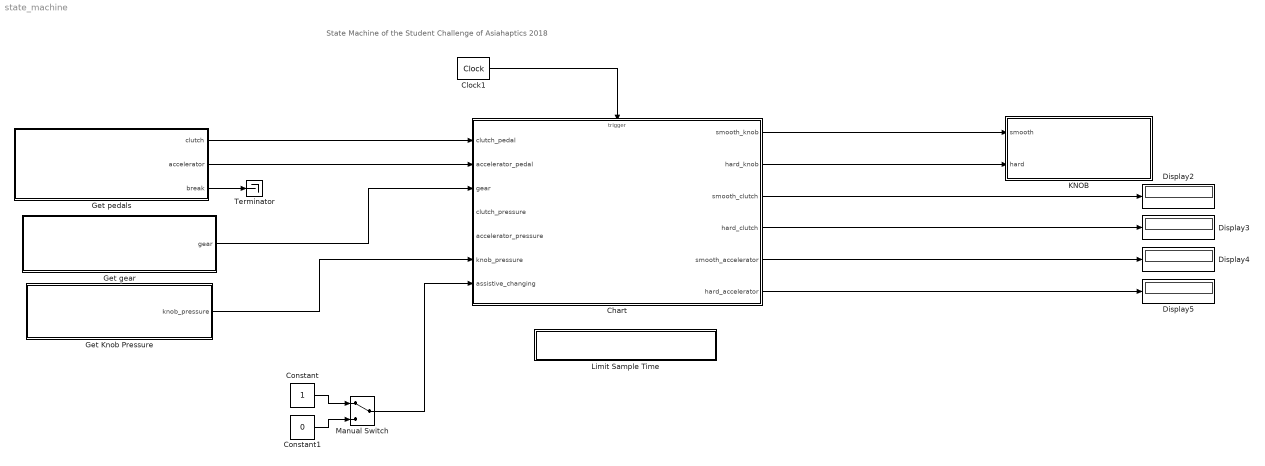
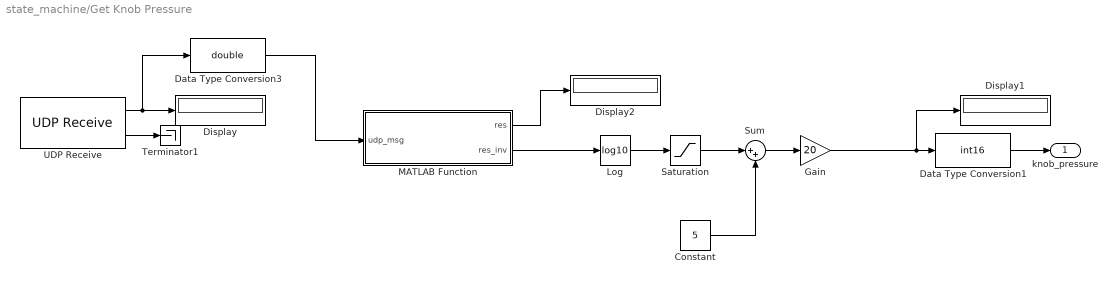
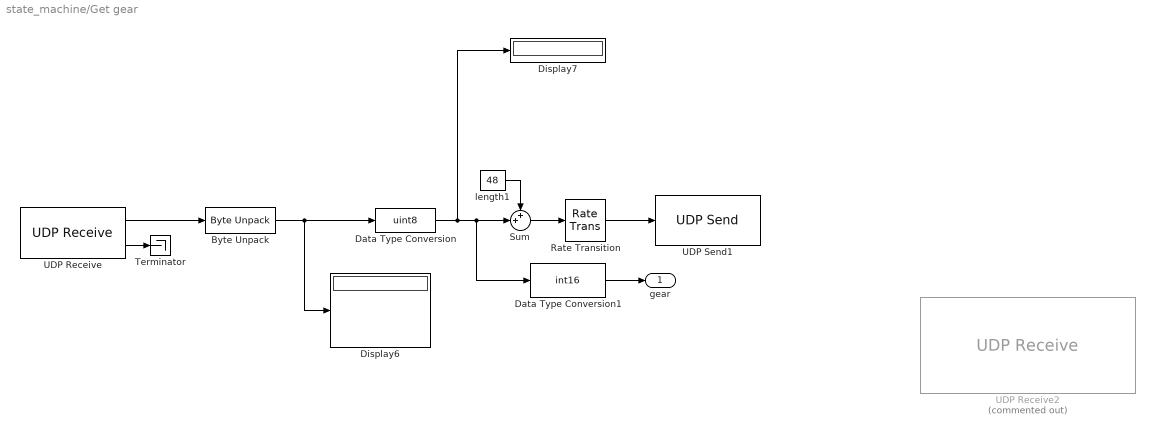
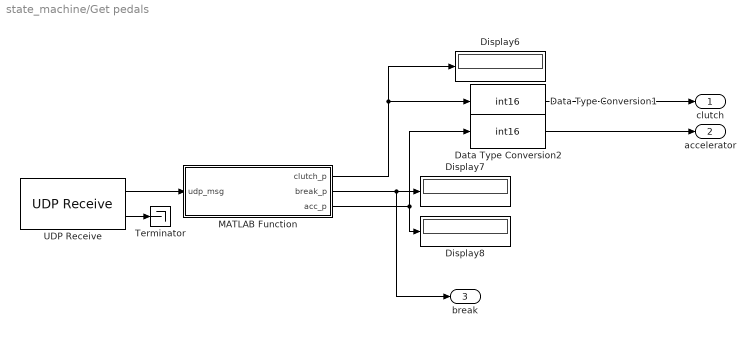
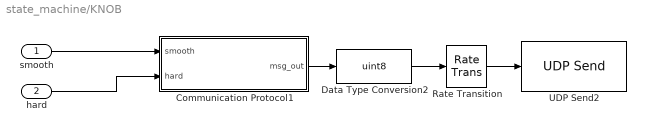
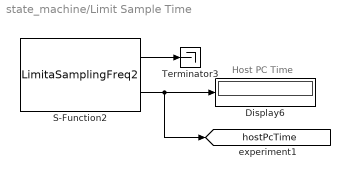
== matlab function state_machine/Get Knob Pressure/MATLAB Function ==
function [res,res_inv]  = get_FSR_resistance(udp_msg)
%% The function returns the value of the FSR resistance
% starting from the ADC value (the signal passes through a voltage divider
r_in = 1000, % Ohm
V_in = 4096; % ADC ticks
V_out = udp_msg; % ADC ticks

res = r_in * (V_in - V_out) / V_out;
res_inv = 1/res;
end

== matlab function state_machine/Get pedals/MATLAB Function ==
function [clutch_p, break_p, acc_p] = get_pedals(udp_msg)
%% The function provides the values of pression of the pedals
%  as an integer number between 0 and 100 (0 released, 100 completely
%  pressed)

clutch_p = 100 - (get_number(udp_msg(2))*100 + get_number(udp_msg(4))*10 + get_number(udp_msg(5)));
break_p = 100 - (get_number(udp_msg(7))*100 + get_number(udp_msg(9))*10 + get_number(udp_msg(10)));
acc_p = 100 - (get_number(udp_msg(12))*100 + get_number(udp_msg(14))*10 + get_number(udp_msg(15)));

end

function [number] = get_number(char)
    number = char - 48;
end

== stateflow chart state_machine/Chart ==
  state CLUTCH_and_KNOB [parallel]
    state Gear_changing_process
      % This Part is assistive driving and can be deactivated if necessary
      state START
        % The system waits for the knob_action
        entry:smooth_knob
        exit:smooth_knob
      state Wait_for_gear_change
        state KNOB_1
          % The action of change starts
          % Neutral Gear
        state KNOB_3
          % The driver waits a lot to change
          entry:smooth_knob
          exit:smooth_knob
        KNOB_1 -> KNOB_3 : after(TIME_THRESHOLD,tick_in)
      state KNOB_2
        % The driver changes the gear
        entry:smooth_clutch
        exit:smooth_clutch
      (default) -> START
      START -> KNOB_1 : [gear==8]
      Wait_for_gear_change -> KNOB_2 : [gear<8]/{completed=true}
    state Wait_and_assist
      state WAIT
        entry: completed=true
      state Wait_knob
        state WAIT_FOR_KNOB
          % The driver should hold
          % the knob
        state CLUTCH_UNNECESSARY
          entry:hard_clutch
          exit:hard_clutch
        (default) -> WAIT_FOR_KNOB
        WAIT_FOR_KNOB -> CLUTCH_UNNECESSARY : [knob_pressure < KNOB_PRESSURE_TH & after(TIME_THRESHOLD,tick_in)]
      state KNOB_UNNECESSARY
        entry: hard_knob
        exit: hard_knob
      (default) -> WAIT
      WAIT -> Wait_knob [order 1] : [clutch_pedal > CLUTCH_THRESHOLD]/{completed=false}
      KNOB_UNNECESSARY -> WAIT [order 2] : [knob_pressure < KNOB_PRESSURE_TH]
      WAIT -> KNOB_UNNECESSARY [order 2] : [knob_pressure > KNOB_PRESSURE_TH & after(TIME_THRESHOLD,tick_in)]
      Wait_knob -> WAIT [order 2] : [clutch_pedal < CLUTCH_THRESHOLD]
    (default) -> Wait_and_assist
    Gear_changing_process -> WAIT : [clutch_pedal < CLUTCH_THRESHOLD]
    Wait_knob -> (junction 83) [order 1] : [knob_pressure > KNOB_PRESSURE_TH]
    (junction 83) -> Gear_changing_process [order 1] : [assistive_changing > 0]
    KNOB_UNNECESSARY -> (junction 83) [order 1] : [clutch_pedal > CLUTCH_THRESHOLD]/{completed=false}
    (junction 83) -> Wait_and_assist [order 2] : [assistive_changing < 1]
  state ACCELERATOR [parallel]
    state No_clutch
    state Error_accelerato
      entry: hard_accelerator
      exit: hard_accelerator
    No_clutch -> Error_accelerato : [completed==false & accelerator_pressure > ACCELERATOR_PRESSURE_TS]
    (default) -> No_clutch
    Error_accelerato -> No_clutch : [completed==true | accelerator_pressure < ACCELERATOR_PRESSURE_TS]
  data: clutch_pedal input int16; accelerator_pedal input int16; gear input int16; clutch_pressure input int16; accelerator_pressure input int16; knob_pressure input int16; CLUTCH_THRESHOLD constant int16 =50; TIME_THRESHOLD constant double =10; KNOB_PRESSURE_TH constant double =50; assistive_changing input int16; completed local boolean =true; ACCELERATOR_PRESSURE_TS constant int16 =10
  events: smooth_knob output EITHER_EDGE_EVENT; hard_knob output EITHER_EDGE_EVENT; smooth_clutch output EITHER_EDGE_EVENT; hard_clutch output EITHER_EDGE_EVENT; smooth_accelerator output EITHER_EDGE_EVENT; hard_accelerator output EITHER_EDGE_EVENT; tick_in input EITHER_EDGE_EVENT

== matlab function state_machine/KNOB/Communication Protocol1 ==
function msg_out  = generate_msg(smooth, hard)
%% The function generate the message depending on the state
msg = zeros(2,1);
if (smooth == 1)
    msg(1) = 1;
    msg(2) = 0;
else if (hard == 1)
        msg(1) = 2;
        msg(2) = 0;
    else
        msg(1) = 0;
        msg(2) = 0;
    end
end

msg_out = msg;

/*
 * state_machine.c
 *
 * Academic License - for use in teaching, academic research, and meeting
 * course requirements at degree granting institutions only.  Not for
 * government, commercial, or other organizational use.
 *
 * Code generation for model "state_machine".
 *
 * Model version              : 1.111
 * Simulink Coder version : 8.13 (R2017b) 24-Jul-2017
 * C source code generated on : Thu Jul 26 17:24:26 2018
 *
 * Target selection: grt.tlc
 * Note: GRT includes extra infrastructure and instrumentation for prototyping
 * Embedded hardware selection: Intel->x86-64 (Windows64)
 * Code generation objectives: Unspecified
 * Validation result: Not run
 */

#include "state_machine.h"
#include "state_machine_private.h"

/* Named constants for Chart: '<Root>/Chart' */
#define state__IN_Gear_changing_process ((uint8_T)1U)
#define state_m_IN_Wait_for_gear_change ((uint8_T)3U)
#define state_mac_IN_CLUTCH_UNNECESSARY ((uint8_T)1U)
#define state_machi_IN_Error_accelerato ((uint8_T)1U)
#define state_machi_IN_KNOB_UNNECESSARY ((uint8_T)1U)
#define state_machin_IN_NO_ACTIVE_CHILD ((uint8_T)0U)
#define state_machin_IN_Wait_and_assist ((uint8_T)2U)
#define state_machine_CLUTCH_THRESHOLD ((int16_T)50)
#define state_machine_IN_KNOB_1        ((uint8_T)1U)
#define state_machine_IN_KNOB_2        ((uint8_T)1U)
#define state_machine_IN_KNOB_3        ((uint8_T)2U)
#define state_machine_IN_No_clutch     ((uint8_T)2U)
#define state_machine_IN_START         ((uint8_T)2U)
#define state_machine_IN_WAIT          ((uint8_T)2U)
#define state_machine_IN_WAIT_FOR_KNOB ((uint8_T)2U)
#define state_machine_IN_Wait_knob     ((uint8_T)3U)
#define state_machine_KNOB_PRESSURE_TH (50.0)
#define state_machine_TIME_THRESHOLD   (10.0)

/* Block signals (auto storage) */
B_state_machine_T state_machine_B;

/* Block states (auto storage) */
DW_state_machine_T state_machine_DW;

/* Previous zero-crossings (trigger) states */
PrevZCX_state_machine_T state_machine_PrevZCX;

/* Real-time model */
RT_MODEL_state_machine_T state_machine_M_;
RT_MODEL_state_machine_T *const state_machine_M = &state_machine_M_;

/* Forward declaration for local functions */
static void exit_internal_Gear_changing_pro(void);
static void state_machine_broadcast_tick_in(void);
static void rate_scheduler(void);

/*
 *   This function updates active task flag for each subrate.
 * The function is called at model base rate, hence the
 * generated code self-manages all its subrates.
 */
static void rate_scheduler(void)
{
  /* Compute which subrates run during the next base time step.  Subrates
   * are an integer multiple of the base rate counter.  Therefore, the subtask
   * counter is reset when it reaches its limit (zero means run).
   */
  (state_machine_M->Timing.TaskCounters.TID[1])++;
  if ((state_machine_M->Timing.TaskCounters.TID[1]) > 49) {/* Sample time: [0.0025s, 0.0s] */
    state_machine_M->Timing.TaskCounters.TID[1] = 0;
  }

  state_machine_M->Timing.sampleHits[1] =
    (state_machine_M->Timing.TaskCounters.TID[1] == 0);
  (state_machine_M->Timing.TaskCounters.TID[2])++;
  if ((state_machine_M->Timing.TaskCounters.TID[2]) > 199) {/* Sample time: [0.01s, 0.0s] */
    state_machine_M->Timing.TaskCounters.TID[2] = 0;
  }

  state_machine_M->Timing.sampleHits[2] =
    (state_machine_M->Timing.TaskCounters.TID[2] == 0);
  (state_machine_M->Timing.TaskCounters.TID[3])++;
  if ((state_machine_M->Timing.TaskCounters.TID[3]) > 399) {/* Sample time: [0.02s, 0.0s] */
    state_machine_M->Timing.TaskCounters.TID[3] = 0;
  }

  state_machine_M->Timing.sampleHits[3] =
    (state_machine_M->Timing.TaskCounters.TID[3] == 0);
}

/* Function for Chart: '<Root>/Chart' */
static void exit_internal_Gear_changing_pro(void)
{
  switch (state_machine_DW.is_Gear_changing_process) {
   case state_machine_IN_KNOB_2:
    state_machine_DW.smooth_clutchEventCounter++;
    state_machine_DW.is_Gear_changing_process = state_machin_IN_NO_ACTIVE_CHILD;
    break;

   case state_machine_IN_START:
    state_machine_DW.smooth_knobEventCounter++;
    state_machine_DW.is_Gear_changing_process = state_machin_IN_NO_ACTIVE_CHILD;
    break;

   case state_m_IN_Wait_for_gear_change:
    if (state_machine_DW.is_Wait_for_gear_change == state_machine_IN_KNOB_3) {
      state_machine_DW.smooth_knobEventCounter++;
      state_machine_DW.is_Wait_for_gear_change = state_machin_IN_NO_ACTIVE_CHILD;
    } else {
      state_machine_DW.is_Wait_for_gear_change = state_machin_IN_NO_ACTIVE_CHILD;
    }

    state_machine_DW.is_Gear_changing_process = state_machin_IN_NO_ACTIVE_CHILD;
    break;

   default:
    state_machine_DW.is_Gear_changing_process = state_machin_IN_NO_ACTIVE_CHILD;
    break;
  }
}

/* Function for Chart: '<Root>/Chart' */
static void state_machine_broadcast_tick_in(void)
{
  boolean_T guard1 = false;
  boolean_T guard2 = false;
  if (state_machine_DW.is_CLUTCH_and_KNOB == state__IN_Gear_changing_process) {
    if (state_machine_B.DataTypeConversion1 < state_machine_CLUTCH_THRESHOLD) {
      exit_internal_Gear_changing_pro();
      state_machine_DW.is_CLUTCH_and_KNOB = state_machin_IN_Wait_and_assist;
      state_machine_DW.is_Wait_and_assist = state_machine_IN_WAIT;
      state_machine_DW.temporalCounter_i1 = 0U;
      state_machine_DW.completed = true;
    } else {
      switch (state_machine_DW.is_Gear_changing_process) {
       case state_machine_IN_KNOB_2:
        break;

       case state_machine_IN_START:
        if (state_machine_B.DataTypeConversion1_f == 8) {
          state_machine_DW.smooth_knobEventCounter++;
          state_machine_DW.is_Gear_changing_process =
            state_m_IN_Wait_for_gear_change;
          state_machine_DW.is_Wait_for_gear_change = state_machine_IN_KNOB_1;
          state_machine_DW.temporalCounter_i1 = 0U;
        }
        break;

       default:
        if (state_machine_B.DataTypeConversion1_f < 8) {
          if (state_machine_DW.is_Wait_for_gear_change ==
              state_machine_IN_KNOB_3) {
            state_machine_DW.smooth_knobEventCounter++;
            state_machine_DW.is_Wait_for_gear_change =
              state_machin_IN_NO_ACTIVE_CHILD;
          } else {
            state_machine_DW.is_Wait_for_gear_change =
              state_machin_IN_NO_ACTIVE_CHILD;
          }

          state_machine_DW.completed = true;
          state_machine_DW.is_Gear_changing_process = state_machine_IN_KNOB_2;
          state_machine_DW.smooth_clutchEventCounter++;
        } else {
          if ((state_machine_DW.is_Wait_for_gear_change ==
               state_machine_IN_KNOB_1) && (state_machine_DW.temporalCounter_i1 >=
               (int32_T)state_machine_TIME_THRESHOLD)) {
            state_machine_DW.is_Wait_for_gear_change = state_machine_IN_KNOB_3;
            state_machine_DW.smooth_knobEventCounter++;
          }
        }
        break;
      }
    }
  } else {
    guard1 = false;
    guard2 = false;
    switch (state_machine_DW.is_Wait_and_assist) {
     case state_machi_IN_KNOB_UNNECESSARY:
      if (state_machine_B.DataTypeConversion1 > state_machine_CLUTCH_THRESHOLD)
      {
        if (state_machine_B.ManualSwitch > 0) {
          state_machine_DW.hard_knobEventCounter++;
          state_machine_DW.is_Wait_and_assist = state_machin_IN_NO_ACTIVE_CHILD;
          state_machine_DW.completed = false;
          state_machine_DW.is_CLUTCH_and_KNOB = state__IN_Gear_changing_process;
          state_machine_DW.is_Gear_changing_process = state_machine_IN_START;
          state_machine_DW.smooth_knobEventCounter++;
        } else if (state_machine_B.ManualSwitch < 1) {
          state_machine_DW.hard_knobEventCounter++;
          state_machine_DW.is_CLUTCH_and_KNOB = state_machin_IN_Wait_and_assist;
          state_machine_DW.is_Wait_and_assist = state_machine_IN_WAIT;
          state_machine_DW.temporalCounter_i1 = 0U;
          state_machine_DW.completed = true;
        } else {
          guard2 = true;
        }
      } else {
        guard2 = true;
      }
      break;

     case state_machine_IN_WAIT:
      if (state_machine_B.DataTypeConversion1 > state_machine_CLUTCH_THRESHOLD)
      {
        state_machine_DW.completed = false;
        state_machine_DW.is_Wait_and_assist = state_machine_IN_Wait_knob;
        state_machine_DW.is_Wait_knob = state_machine_IN_WAIT_FOR_KNOB;
        state_machine_DW.temporalCounter_i1 = 0U;
      } else {
        if ((state_machine_B.DataTypeConversion1_k > (int32_T)
             state_machine_KNOB_PRESSURE_TH) &&
            (state_machine_DW.temporalCounter_i1 >= (int32_T)
             state_machine_TIME_THRESHOLD)) {
          state_machine_DW.is_Wait_and_assist = state_machi_IN_KNOB_UNNECESSARY;
          state_machine_DW.hard_knobEventCounter++;
        }
      }
      break;

     default:
      if (state_machine_B.DataTypeConversion1_k > (int32_T)
          state_machine_KNOB_PRESSURE_TH) {
        if (state_machine_B.ManualSwitch > 0) {
          if (state_machine_DW.is_Wait_knob == state_mac_IN_CLUTCH_UNNECESSARY)
          {
            state_machine_DW.hard_clutchEventCounter++;
            state_machine_DW.is_Wait_knob = state_machin_IN_NO_ACTIVE_CHILD;
          } else {
            state_machine_DW.is_Wait_knob = state_machin_IN_NO_ACTIVE_CHILD;
          }

          state_machine_DW.is_Wait_and_assist = state_machin_IN_NO_ACTIVE_CHILD;
          state_machine_DW.is_CLUTCH_and_KNOB = state__IN_Gear_changing_process;
          state_machine_DW.is_Gear_changing_process = state_machine_IN_START;
          state_machine_DW.smooth_knobEventCounter++;
        } else if (state_machine_B.ManualSwitch < 1) {
          if (state_machine_DW.is_Wait_knob == state_mac_IN_CLUTCH_UNNECESSARY)
          {
            state_machine_DW.hard_clutchEventCounter++;
            state_machine_DW.is_Wait_knob = state_machin_IN_NO_ACTIVE_CHILD;
          } else {
            state_machine_DW.is_Wait_knob = state_machin_IN_NO_ACTIVE_CHILD;
          }

          state_machine_DW.is_CLUTCH_and_KNOB = state_machin_IN_Wait_and_assist;
          state_machine_DW.is_Wait_and_assist = state_machine_IN_WAIT;
          state_machine_DW.temporalCounter_i1 = 0U;
          state_machine_DW.completed = true;
        } else {
          guard1 = true;
        }
      } else {
        guard1 = true;
      }
      break;
    }

    if (guard2) {
      if (state_machine_B.DataTypeConversion1_k < (int32_T)
          state_machine_KNOB_PRESSURE_TH) {
        state_machine_DW.hard_knobEventCounter++;
        state_machine_DW.is_Wait_and_assist = state_machine_IN_WAIT;
        state_machine_DW.temporalCounter_i1 = 0U;
        state_machine_DW.completed = true;
      }
    }

    if (guard1) {
      if (state_machine_B.DataTypeConversion1 < state_machine_CLUTCH_THRESHOLD)
      {
        if (state_machine_DW.is_Wait_knob == state_mac_IN_CLUTCH_UNNECESSARY) {
          state_machine_DW.hard_clutchEventCounter++;
          state_machine_DW.is_Wait_knob = state_machin_IN_NO_ACTIVE_CHILD;
        } else {
          state_machine_DW.is_Wait_knob = state_machin_IN_NO_ACTIVE_CHILD;
        }

        state_machine_DW.is_Wait_and_assist = state_machine_IN_WAIT;
        state_machine_DW.temporalCounter_i1 = 0U;
        state_machine_DW.completed = true;
      } else {
        switch (state_machine_DW.is_Wait_knob) {
         case state_mac_IN_CLUTCH_UNNECESSARY:
          break;

         default:
          if ((state_machine_B.DataTypeConversion1_k < (int32_T)
               state_machine_KNOB_PRESSURE_TH) &&
              (state_machine_DW.temporalCounter_i1 >= (int32_T)
               state_machine_TIME_THRESHOLD)) {
            state_machine_DW.is_Wait_knob = state_mac_IN_CLUTCH_UNNECESSARY;
            state_machine_DW.hard_clutchEventCounter++;
          }
          break;
        }
      }
    }
  }

  if (state_machine_DW.is_ACCELERATOR == state_machi_IN_Error_accelerato) {
    state_machine_DW.hard_acceleratorEventCounter++;
    state_machine_DW.is_ACCELERATOR = state_machine_IN_No_clutch;
  }
}

/* Model step function */
void state_machine_step(void)
{
  char_T *sErr;
  uint8_T rtb_clutch_p;
  int32_T rtb_DataTypeConversion3;
  real_T rtb_Sum_j;
  ZCEventType zcEvent;
  uint8_T rtb_DataTypeConversion2[2];
  real32_T tmp;
  uint32_T qY;
  int32_T q0;
  uint32_T qY_0;
  real_T u0;
  if (state_machine_M->Timing.TaskCounters.TID[3] == 0) {
    /* S-Function (sdspFromNetwork): '<S5>/UDP Receive' */
    sErr = GetErrorBuffer(&state_machine_DW.UDPReceive_NetworkLib[0U]);
    rtb_DataTypeConversion3 = 15;
    LibOutputs_Network(&state_machine_DW.UDPReceive_NetworkLib[0U],
                       &state_machine_B.UDPReceive_o1_p[0U],
                       &rtb_DataTypeConversion3);
    if (*sErr != 0) {
      rtmSetErrorStatus(state_machine_M, sErr);
      rtmSetStopRequested(state_machine_M, 1);
    }

    state_machine_B.UDPReceive_o2 = (uint16_T)rtb_DataTypeConversion3;

    /* End of S-Function (sdspFromNetwork): '<S5>/UDP Receive' */

    /* MATLAB Function: '<S5>/MATLAB Function' */
    q0 = state_machine_B.UDPReceive_o1_p[1];
    qY_0 = q0 - 48U;
    if (qY_0 > (uint32_T)q0) {
      qY_0 = 0U;
    }

    rtb_DataTypeConversion3 = (int32_T)(qY_0 * 100U);
    if ((uint32_T)rtb_DataTypeConversion3 > 255U) {
      rtb_DataTypeConversion3 = 255;
    }

    q0 = state_machine_B.UDPReceive_o1_p[3];
    qY_0 = q0 - 48U;
    if (qY_0 > (uint32_T)q0) {
      qY_0 = 0U;
    }

    q0 = (int32_T)(qY_0 * 10U);
    if ((uint32_T)q0 > 255U) {
      q0 = 255;
    }

    rtb_DataTypeConversion3 = (int32_T)((uint32_T)rtb_DataTypeConversion3 + q0);
    if ((uint32_T)rtb_DataTypeConversion3 > 255U) {
      rtb_DataTypeConversion3 = 255;
    }

    q0 = state_machine_B.UDPReceive_o1_p[4];
    qY_0 = q0 - 48U;
    if (qY_0 > (uint32_T)q0) {
      qY_0 = 0U;
    }

    rtb_DataTypeConversion3 += qY_0;
    if ((uint32_T)rtb_DataTypeConversion3 > 255U) {
      rtb_DataTypeConversion3 = 255;
    }

    qY_0 = 100U - rtb_DataTypeConversion3;
    if (qY_0 > 100U) {
      qY_0 = 0U;
    }

    q0 = state_machine_B.UDPReceive_o1_p[11];
    qY = q0 - 48U;
    if (qY > (uint32_T)q0) {
      qY = 0U;
    }

    rtb_DataTypeConversion3 = (int32_T)(qY * 100U);
    if ((uint32_T)rtb_DataTypeConversion3 > 255U) {
      rtb_DataTypeConversion3 = 255;
    }

    q0 = state_machine_B.UDPReceive_o1_p[13];
    qY = q0 - 48U;
    if (qY > (uint32_T)q0) {
      qY = 0U;
    }

    q0 = (int32_T)(qY * 10U);
    if ((uint32_T)q0 > 255U) {
      q0 = 255;
    }

    rtb_DataTypeConversion3 = (int32_T)((uint32_T)rtb_DataTypeConversion3 + q0);
    if ((uint32_T)rtb_DataTypeConversion3 > 255U) {
      rtb_DataTypeConversion3 = 255;
    }

    q0 = state_machine_B.UDPReceive_o1_p[14];
    qY = q0 - 48U;
    if (qY > (uint32_T)q0) {
      qY = 0U;
    }

    rtb_DataTypeConversion3 += qY;
    if ((uint32_T)rtb_DataTypeConversion3 > 255U) {
      rtb_DataTypeConversion3 = 255;
    }

    qY = 100U - rtb_DataTypeConversion3;
    if (qY > 100U) {
      qY = 0U;
    }

    /* DataTypeConversion: '<S5>/Data Type Conversion1' incorporates:
     *  MATLAB Function: '<S5>/MATLAB Function'
     */
    state_machine_B.DataTypeConversion1 = (uint8_T)qY_0;

    /* DataTypeConversion: '<S5>/Data Type Conversion2' incorporates:
     *  MATLAB Function: '<S5>/MATLAB Function'
     */
    state_machine_B.DataTypeConversion2 = (uint8_T)qY;
  }

  /* S-Function (sdspFromNetwork): '<S4>/UDP Receive' */
  sErr = GetErrorBuffer(&state_machine_DW.UDPReceive_NetworkLib_i[0U]);
  rtb_DataTypeConversion3 = 4;
  LibOutputs_Network(&state_machine_DW.UDPReceive_NetworkLib_i[0U],
                     &state_machine_B.UDPReceive_o1_i[0U],
                     &rtb_DataTypeConversion3);
  if (*sErr != 0) {
    rtmSetErrorStatus(state_machine_M, sErr);
    rtmSetStopRequested(state_machine_M, 1);
  }

  state_machine_B.UDPReceive_o2_i = (uint16_T)rtb_DataTypeConversion3;

  /* End of S-Function (sdspFromNetwork): '<S4>/UDP Receive' */

  /* S-Function (byte2any): '<S4>/Byte Unpack' */

  /* Unpack: <S4>/Byte Unpack */
  (void) memcpy(&state_machine_B.ByteUnpack, &state_machine_B.UDPReceive_o1_i[0],
                4);

  /* DataTypeConversion: '<S4>/Data Type Conversion' */
  tmp = floorf(state_machine_B.ByteUnpack);
  if (rtIsNaNF(tmp) || rtIsInfF(tmp)) {
    tmp = 0.0F;
  } else {
    tmp = fmodf(tmp, 256.0F);
  }

  rtb_clutch_p = (uint8_T)(tmp < 0.0F ? (int32_T)(uint8_T)-(int8_T)(uint8_T)-tmp
    : (int32_T)(uint8_T)tmp);

  /* End of DataTypeConversion: '<S4>/Data Type Conversion' */

  /* DataTypeConversion: '<S4>/Data Type Conversion1' */
  state_machine_B.DataTypeConversion1_f = rtb_clutch_p;
  if (state_machine_M->Timing.TaskCounters.TID[2] == 0) {
    /* S-Function (sdspFromNetwork): '<S3>/UDP Receive' */
    sErr = GetErrorBuffer(&state_machine_DW.UDPReceive_NetworkLib_b[0U]);
    rtb_DataTypeConversion3 = 1;
    LibOutputs_Network(&state_machine_DW.UDPReceive_NetworkLib_b[0U],
                       &state_machine_B.UDPReceive_o1, &rtb_DataTypeConversion3);
    if (*sErr != 0) {
      rtmSetErrorStatus(state_machine_M, sErr);
      rtmSetStopRequested(state_machine_M, 1);
    }

    state_machine_B.UDPReceive_o2_l = (uint16_T)rtb_DataTypeConversion3;

    /* End of S-Function (sdspFromNetwork): '<S3>/UDP Receive' */

    /* DataTypeConversion: '<S3>/Data Type Conversion3' */
    rtb_DataTypeConversion3 = state_machine_B.UDPReceive_o1;

    /* Math: '<S3>/Log' incorporates:
     *  MATLAB Function: '<S3>/MATLAB Function'
     *
     * About '<S3>/Log':
     *  Operator: log10
     */
    u0 = log10(1.0 / ((4096.0 - (real_T)rtb_DataTypeConversion3) * 1000.0 /
                      (real_T)rtb_DataTypeConversion3));

    /* Saturate: '<S3>/Saturation' */
    if (u0 > state_machine_P.Saturation_UpperSat) {
      u0 = state_machine_P.Saturation_UpperSat;
    } else {
      if (u0 < state_machine_P.Saturation_LowerSat) {
        u0 = state_machine_P.Saturation_LowerSat;
      }
    }

    /* End of Saturate: '<S3>/Saturation' */

    /* DataTypeConversion: '<S3>/Data Type Conversion1' incorporates:
     *  Constant: '<S3>/Constant'
     *  Gain: '<S3>/Gain'
     *  Sum: '<S3>/Sum'
     */
    u0 = floor((u0 + state_machine_P.Constant_Value) * state_machine_P.Gain_Gain);
    if (rtIsNaN(u0) || rtIsInf(u0)) {
      u0 = 0.0;
    } else {
      u0 = fmod(u0, 65536.0);
    }

    state_machine_B.DataTypeConversion1_k = (int16_T)(u0 < 0.0 ? (int32_T)
      (int16_T)-(int16_T)(uint16_T)-u0 : (int32_T)(int16_T)(uint16_T)u0);

    /* End of DataTypeConversion: '<S3>/Data Type Conversion1' */
  }

  if (state_machine_M->Timing.TaskCounters.TID[1] == 0) {
    /* ManualSwitch: '<Root>/Manual Switch' incorporates:
     *  Constant: '<Root>/Constant'
     *  Constant: '<Root>/Constant1'
     */
    if (state_machine_P.ManualSwitch_CurrentSetting == 1) {
      state_machine_B.ManualSwitch = state_machine_P.Constant_Value_o;
    } else {
      state_machine_B.ManualSwitch = state_machine_P.Constant1_Value;
    }

    /* End of ManualSwitch: '<Root>/Manual Switch' */

    /* Sum: '<S2>/Sum' incorporates:
     *  Constant: '<S2>/Constant'
     *  UnitDelay: '<S2>/Unit Delay'
     */
    rtb_Sum_j = state_machine_P.Constant_Value_j -
      state_machine_DW.UnitDelay_DSTATE;

    /* Chart: '<Root>/Chart' incorporates:
     *  TriggerPort: '<S1>/tick_in'
     */
    zcEvent = rt_ZCFcn(ANY_ZERO_CROSSING,&state_machine_PrevZCX.Chart_Trig_ZCE,
                       (rtb_Sum_j));
    if (zcEvent != NO_ZCEVENT) {
      if (state_machine_DW.temporalCounter_i1 < 15U) {
        state_machine_DW.temporalCounter_i1++;
      }

      state_machine_broadcast_tick_in();
      if (state_machine_DW.smooth_knobEventCounter > 0U) {
        state_machine_B.smooth_knob = !state_machine_B.smooth_knob;
        state_machine_DW.smooth_knobEventCounter--;
      }

      if (state_machine_DW.hard_knobEventCounter > 0U) {
        state_machine_B.hard_knob = !state_machine_B.hard_knob;
        state_machine_DW.hard_knobEventCounter--;
      }

      if (state_machine_DW.smooth_clutchEventCounter > 0U) {
        state_machine_B.smooth_clutch = !state_machine_B.smooth_clutch;
        state_machine_DW.smooth_clutchEventCounter--;
      }

      if (state_machine_DW.hard_clutchEventCounter > 0U) {
        state_machine_B.hard_clutch = !state_machine_B.hard_clutch;
        state_machine_DW.hard_clutchEventCounter--;
      }

      if (state_machine_DW.smooth_acceleratorEventCounter > 0U) {
        state_machine_B.smooth_accelerator = !state_machine_B.smooth_accelerator;
        state_machine_DW.smooth_acceleratorEventCounter--;
      }

      if (state_machine_DW.hard_acceleratorEventCounter > 0U) {
        state_machine_B.hard_accelerator = !state_machine_B.hard_accelerator;
        state_machine_DW.hard_acceleratorEventCounter--;
      }
    }

    /* MATLAB Function: '<S6>/Communication Protocol1' */
    if (state_machine_B.smooth_knob) {
      rtb_DataTypeConversion3 = 1;
    } else if (state_machine_B.hard_knob) {
      rtb_DataTypeConversion3 = 2;
    } else {
      rtb_DataTypeConversion3 = 0;
    }

    /* End of MATLAB Function: '<S6>/Communication Protocol1' */

    /* DataTypeConversion: '<S6>/Data Type Conversion2' */
    rtb_DataTypeConversion2[0] = (uint8_T)(int32_T)fmod(rtb_DataTypeConversion3,
      256.0);

    /* RateTransition: '<S6>/Rate Transition' */
    if (state_machine_M->Timing.TaskCounters.TID[2] == 0) {
      state_machine_B.RateTransition[0] = rtb_DataTypeConversion2[0];
      state_machine_B.RateTransition[1] = 0U;
    }

    /* End of RateTransition: '<S6>/Rate Transition' */
  }

  /* Sum: '<S4>/Sum' incorporates:
   *  Constant: '<S4>/length1'
   */
  rtb_clutch_p = (uint8_T)((uint32_T)state_machine_P.length1_Value +
    rtb_clutch_p);

  /* RateTransition: '<S4>/Rate Transition' */
  if (state_machine_M->Timing.TaskCounters.TID[3] == 0) {
    state_machine_B.RateTransition_m = rtb_clutch_p;
  }

  /* End of RateTransition: '<S4>/Rate Transition' */

  /* S-Function (LimitaSamplingFreq2): '<S7>/S-Function2' */

  /* Level2 S-Function Block: '<S7>/S-Function2' (LimitaSamplingFreq2) */
  {
    SimStruct *rts = state_machine_M->childSfunctions[0];
    sfcnOutputs(rts,0);
  }

  if (state_machine_M->Timing.TaskCounters.TID[1] == 0) {
    /* Update for UnitDelay: '<S2>/Unit Delay' */
    state_machine_DW.UnitDelay_DSTATE = rtb_Sum_j;
  }

  if (state_machine_M->Timing.TaskCounters.TID[2] == 0) {
    /* Update for S-Function (sdspToNetwork): '<S6>/UDP Send2' */
    sErr = GetErrorBuffer(&state_machine_DW.UDPSend2_NetworkLib[0U]);
    LibUpdate_Network(&state_machine_DW.UDPSend2_NetworkLib[0U],
                      &state_machine_B.RateTransition[0U], 2);
    if (*sErr != 0) {
      rtmSetErrorStatus(state_machine_M, sErr);
      rtmSetStopRequested(state_machine_M, 1);
    }

    /* End of Update for S-Function (sdspToNetwork): '<S6>/UDP Send2' */
  }

  if (state_machine_M->Timing.TaskCounters.TID[3] == 0) {
    /* Update for S-Function (sdspToNetwork): '<S4>/UDP Send1' */
    sErr = GetErrorBuffer(&state_machine_DW.UDPSend1_NetworkLib[0U]);
    LibUpdate_Network(&state_machine_DW.UDPSend1_NetworkLib[0U],
                      &state_machine_B.RateTransition_m, 1);
    if (*sErr != 0) {
      rtmSetErrorStatus(state_machine_M, sErr);
      rtmSetStopRequested(state_machine_M, 1);
    }

    /* End of Update for S-Function (sdspToNetwork): '<S4>/UDP Send1' */
  }

  /* Update for S-Function (LimitaSamplingFreq2): '<S7>/S-Function2' */
  /* Level2 S-Function Block: '<S7>/S-Function2' (LimitaSamplingFreq2) */
  {
    SimStruct *rts = state_machine_M->childSfunctions[0];
    sfcnUpdate(rts,0);
    if (ssGetErrorStatus(rts) != (NULL))
      return;
  }

  /* Matfile logging */
  rt_UpdateTXYLogVars(state_machine_M->rtwLogInfo, (state_machine_M->Timing.t));

  /* signal main to stop simulation */
  {                                    /* Sample time: [5.0E-5s, 0.0s] */
    if ((rtmGetTFinal(state_machine_M)!=-1) &&
        !((rtmGetTFinal(state_machine_M)-state_machine_M->Timing.t[0]) >
          state_machine_M->Timing.t[0] * (DBL_EPSILON))) {
      rtmSetErrorStatus(state_machine_M, "Simulation finished");
    }

    if (rtmGetStopRequested(state_machine_M)) {
      rtmSetErrorStatus(state_machine_M, "Simulation finished");
    }
  }

  /* Update absolute time for base rate */
  /* The "clockTick0" counts the number of times the code of this task has
   * been executed. The absolute time is the multiplication of "clockTick0"
   * and "Timing.stepSize0". Size of "clockTick0" ensures timer will not
   * overflow during the application lifespan selected.
   * Timer of this task consists of two 32 bit unsigned integers.
   * The two integers represent the low bits Timing.clockTick0 and the high bits
   * Timing.clockTickH0. When the low bit overflows to 0, the high bits increment.
   */
  if (!(++state_machine_M->Timing.clockTick0)) {
    ++state_machine_M->Timing.clockTickH0;
  }

  state_machine_M->Timing.t[0] = state_machine_M->Timing.clockTick0 *
    state_machine_M->Timing.stepSize0 + state_machine_M->Timing.clockTickH0 *
    state_machine_M->Timing.stepSize0 * 4294967296.0;
  rate_scheduler();
}
